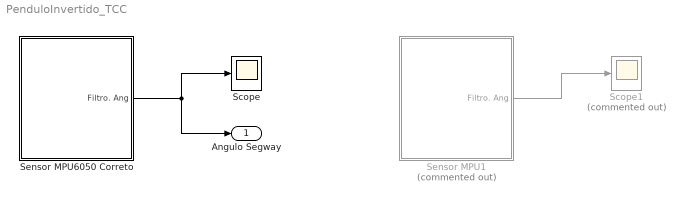
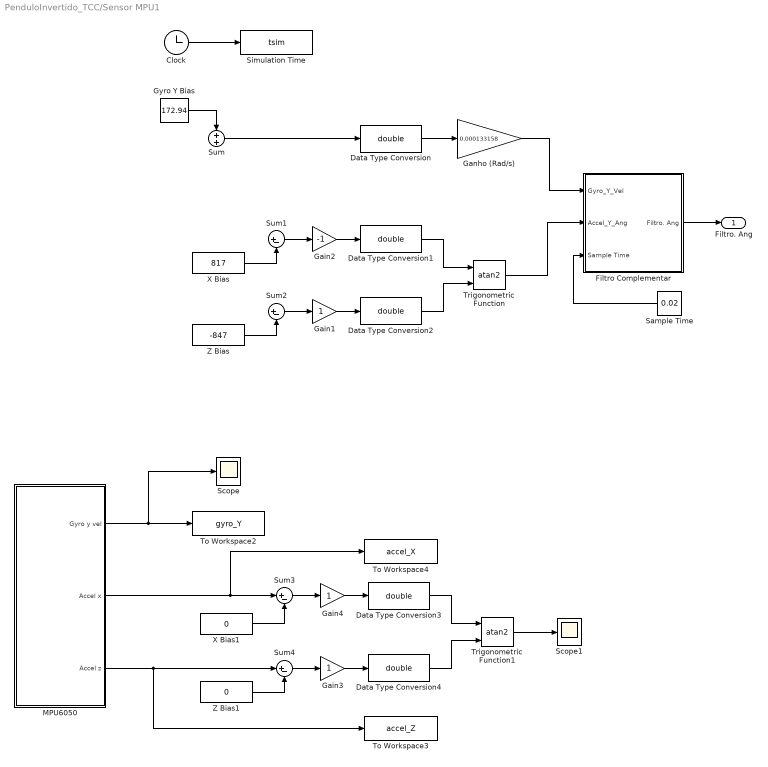
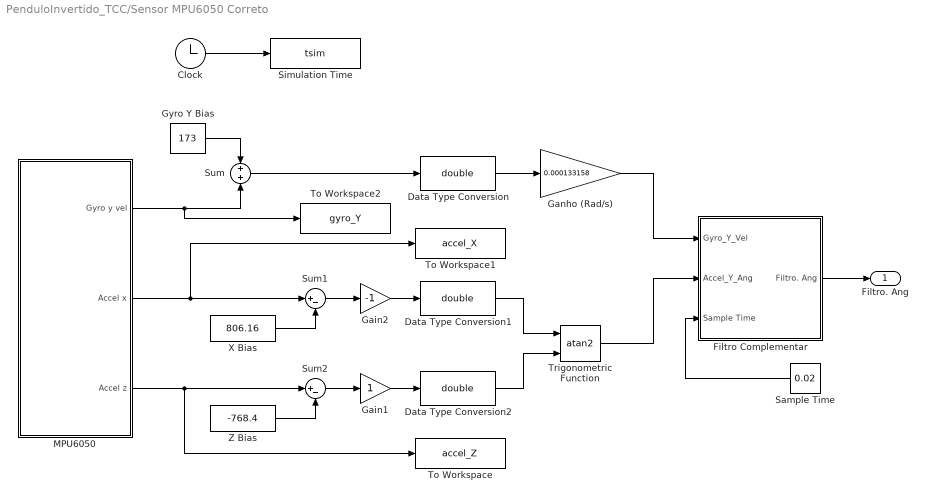
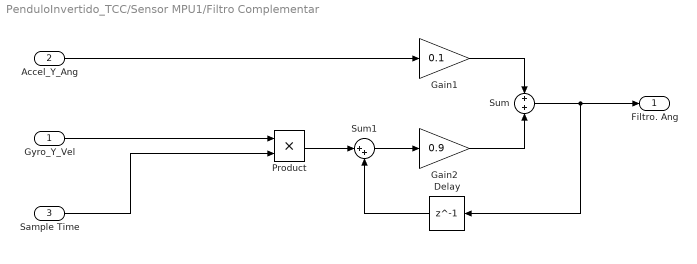
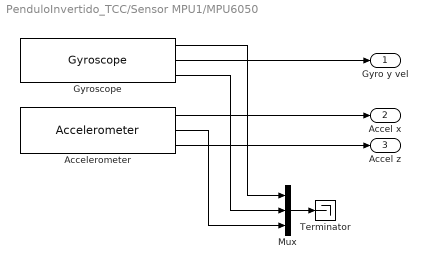
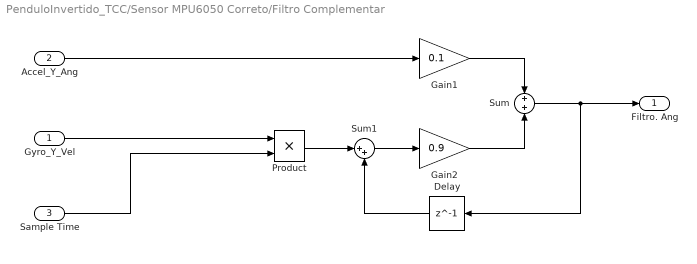
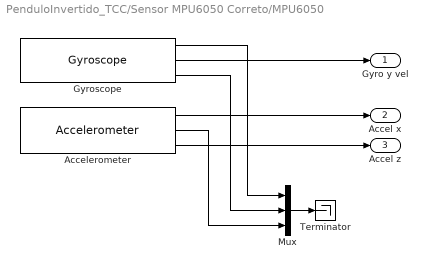
/*
 * PenduloInvertido_TCC.c
 *
 * Code generation for model "PenduloInvertido_TCC".
 *
 * Model version              : 1.10
 * Simulink Coder version : 9.3 (R2020a) 18-Nov-2019
 * C source code generated on : Wed Aug 18 14:00:46 2021
 *
 * Target selection: ert.tlc
 * Note: GRT includes extra infrastructure and instrumentation for prototyping
 * Embedded hardware selection: Atmel->AVR
 * Code generation objectives: Unspecified
 * Validation result: Not run
 */

#include "PenduloInvertido_TCC.h"
#include "PenduloInvertido_TCC_private.h"

/* Block signals (default storage) */
B_PenduloInvertido_TCC_T PenduloInvertido_TCC_B;

/* Block states (default storage) */
DW_PenduloInvertido_TCC_T PenduloInvertido_TCC_DW;

/* External outputs (root outports fed by signals with default storage) */
ExtY_PenduloInvertido_TCC_T PenduloInvertido_TCC_Y;

/* Real-time model */
RT_MODEL_PenduloInvertido_TCC_T PenduloInvertido_TCC_M_;
RT_MODEL_PenduloInvertido_TCC_T *const PenduloInvertido_TCC_M =
  &PenduloInvertido_TCC_M_;

/* Forward declaration for local functions */
static void matlabCodegenHandle_matlabCod_h(soMPU6050Accel_PenduloInverti_T *obj);
static void matlabCodegenHandle_matlabCodeg(soMPU6050Gyro_PenduloInvertid_T *obj);
real_T rt_atan2d_snf(real_T u0, real_T u1)
{
  real_T y;
  int16_T u0_0;
  int16_T u1_0;
  if (rtIsNaN(u0) || rtIsNaN(u1)) {
    y = (rtNaN);
  } else if (rtIsInf(u0) && rtIsInf(u1)) {
    if (u0 > 0.0) {
      u0_0 = 1;
    } else {
      u0_0 = -1;
    }

    if (u1 > 0.0) {
      u1_0 = 1;
    } else {
      u1_0 = -1;
    }

    y = atan2(u0_0, u1_0);
  } else if (u1 == 0.0) {
    if (u0 > 0.0) {
      y = RT_PI / 2.0;
    } else if (u0 < 0.0) {
      y = -(RT_PI / 2.0);
    } else {
      y = 0.0;
    }
  } else {
    y = atan2(u0, u1);
  }

  return y;
}

static void matlabCodegenHandle_matlabCod_h(soMPU6050Accel_PenduloInverti_T *obj)
{
  if (!obj->matlabCodegenIsDeleted) {
    obj->matlabCodegenIsDeleted = true;
  }
}

static void matlabCodegenHandle_matlabCodeg(soMPU6050Gyro_PenduloInvertid_T *obj)
{
  if (!obj->matlabCodegenIsDeleted) {
    obj->matlabCodegenIsDeleted = true;
  }
}

/* Model step function */
void PenduloInvertido_TCC_step(void)
{
  /* local block i/o variables */
  real_T rtb_Sum_e;
  int16_T rtb_Accelerometer_o1;
  int16_T rtb_Accelerometer_o3;
  int16_T rtb_Gyroscope_o2;
  int16_T out[3];

  /* MATLABSystem: '<S3>/Accelerometer' */
  MPU6050Accel_Read(out);
  rtb_Accelerometer_o1 = out[0];
  rtb_Accelerometer_o3 = out[2];

  /* MATLABSystem: '<S3>/Gyroscope' */
  MPU6050Gyro_Read(out);
  rtb_Gyroscope_o2 = out[1];

  /* Sum: '<S2>/Sum' incorporates:
   *  Constant: '<S1>/Gyro Y Bias'
   *  Constant: '<S1>/Sample Time'
   *  Constant: '<S1>/X Bias'
   *  Constant: '<S1>/Z Bias'
   *  Delay: '<S2>/Delay'
   *  Gain: '<S1>/Gain1'
   *  Gain: '<S1>/Gain2'
   *  Gain: '<S1>/Ganho (Rad//s)'
   *  Gain: '<S2>/Gain1'
   *  Gain: '<S2>/Gain2'
   *  Product: '<S2>/Product'
   *  Sum: '<S1>/Sum'
   *  Sum: '<S1>/Sum1'
   *  Sum: '<S1>/Sum2'
   *  Sum: '<S2>/Sum1'
   *  Trigonometry: '<S1>/Trigonometric Function'
   */
  rtb_Sum_e = ((PenduloInvertido_TCC_P.GyroYBias_Value + (real_T)
                rtb_Gyroscope_o2) * PenduloInvertido_TCC_P.GanhoRads_Gain *
               PenduloInvertido_TCC_P.SampleTime_Value +
               PenduloInvertido_TCC_DW.Delay_DSTATE) *
    PenduloInvertido_TCC_P.Gain2_Gain_o + rt_atan2d_snf(((real_T)
    rtb_Accelerometer_o1 - PenduloInvertido_TCC_P.XBias_Value) *
    PenduloInvertido_TCC_P.Gain2_Gain, ((real_T)rtb_Accelerometer_o3 -
    PenduloInvertido_TCC_P.ZBias_Value) * PenduloInvertido_TCC_P.Gain1_Gain) *
    PenduloInvertido_TCC_P.Gain1_Gain_i;

  /* Outport: '<Root>/Angulo Segway' */
  PenduloInvertido_TCC_Y.AnguloSegway = rtb_Sum_e;

  /* Clock: '<S1>/Clock' */
  PenduloInvertido_TCC_B.Clock = PenduloInvertido_TCC_M->Timing.t[0];

  /* Update for Delay: '<S2>/Delay' */
  PenduloInvertido_TCC_DW.Delay_DSTATE = rtb_Sum_e;

  /* Update absolute time for base rate */
  /* The "clockTick0" counts the number of times the code of this task has
   * been executed. The absolute time is the multiplication of "clockTick0"
   * and "Timing.stepSize0". Size of "clockTick0" ensures timer will not
   * overflow during the application lifespan selected.
   * Timer of this task consists of two 32 bit unsigned integers.
   * The two integers represent the low bits Timing.clockTick0 and the high bits
   * Timing.clockTickH0. When the low bit overflows to 0, the high bits increment.
   */
  if (!(++PenduloInvertido_TCC_M->Timing.clockTick0)) {
    ++PenduloInvertido_TCC_M->Timing.clockTickH0;
  }

  PenduloInvertido_TCC_M->Timing.t[0] =
    PenduloInvertido_TCC_M->Timing.clockTick0 *
    PenduloInvertido_TCC_M->Timing.stepSize0 +
    PenduloInvertido_TCC_M->Timing.clockTickH0 *
    PenduloInvertido_TCC_M->Timing.stepSize0 * 4294967296.0;

  {
    /* Update absolute timer for sample time: [0.02s, 0.0s] */
    /* The "clockTick1" counts the number of times the code of this task has
     * been executed. The resolution of this integer timer is 0.02, which is the step size
     * of the task. Size of "clockTick1" ensures timer will not overflow during the
     * application lifespan selected.
     * Timer of this task consists of two 32 bit unsigned integers.
     * The two integers represent the low bits Timing.clockTick1 and the high bits
     * Timing.clockTickH1. When the low bit overflows to 0, the high bits increment.
     */
    PenduloInvertido_TCC_M->Timing.clockTick1++;
    if (!PenduloInvertido_TCC_M->Timing.clockTick1) {
      PenduloInvertido_TCC_M->Timing.clockTickH1++;
    }
  }
}
